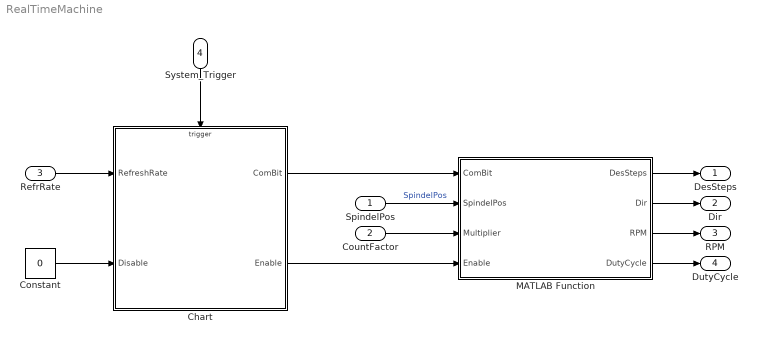
== matlab function RealTimeMachine/MATLAB Function ==
function [DesSteps, Dir, RPM, DutyCycle] = fcn(ComBit, SpindelPos, Multiplier, Enable)

% Initialization of Variables and Outputs
RPM = uint16(0);
DutyCycle = uint16(130);
Dir = uint16(0);
DesSteps = uint16(0);

%% Declaration of constants
TotalStepTime = uint16(80); %Total time a pulse train is allowed to take in us
rpmRefreshRate = uint16(1000); %RPM calculation Frequency
SingleStepDC = uint16(4); %Single Step Dutycycle in 3us clock cycles (x*3us high, x*3us low)
MaxPos = 0x00FFFFFF; %Point on which the encoder register will overflow 


%% Declaration of persistant variables
persistent Carrier
persistent rpmSteps
persistent PrevSpindelpos

if isempty(Carrier)
    Carrier = 0;
end 

if isempty(rpmSteps)
    rpmSteps = uint32(0);
end

if isempty(PrevSpindelpos)
    PrevSpindelpos = uint32(0);
end

if (SpindelPos ~= PrevSpindelpos) && Enable
    % Spindel in motion
    %% Deal with encoder over/underflow and determine direction
    
    if (SpindelPos > PrevSpindelpos) && ((SpindelPos - PrevSpindelpos) > (MaxPos/2))
        SpindelDiv = (MaxPos - SpindelPos) + PrevSpindelpos;
        PrevSpindelpos = SpindelPos;
        Dir = uint16(0);
        
    elseif(SpindelPos < PrevSpindelpos) && ((PrevSpindelpos - SpindelPos) > (MaxPos/2))
        SpindelDiv = (MaxPos - PrevSpindelpos) + SpindelPos;
        PrevSpindelpos = SpindelPos;
        Dir = uint16(1);
        
    elseif(SpindelPos < PrevSpindelpos)
        SpindelDiv = (PrevSpindelpos - SpindelPos);
        PrevSpindelpos = SpindelPos;
        Dir = uint16(0);
        
    elseif(SpindelPos > PrevSpindelpos)
        SpindelDiv = SpindelPos - PrevSpindelpos;
        PrevSpindelpos = SpindelPos;
        Dir = uint16(1);
    else
        SpindelDiv = uint32(0);
    end

    %% Calculate Desired Steps
    rpmSteps = rpmSteps + uint32(SpindelDiv);
    Carrier = Carrier + (Multiplier * double(SpindelDiv));
    DesSteps = uint16(floor(Carrier));
    Carrier = Carrier - floor(Carrier);

    %% Calculate Dutycycle
    if DesSteps <= 1
        DutyCycle = uint16(SingleStepDC);
    elseif (TotalStepTime/DesSteps) < 7
        DutyCycle = uint16(2);
    else
        DutyCycle = uint16(((TotalStepTime/DesSteps)/10));
    end
            


    %% Calculate current RPM
    if ComBit
        RPM = uint16((rpmSteps*60*uint32(rpmRefreshRate))/4096);
        rpmSteps = uint32(0);
    end

else
    %% Spindel not moving
    PrevSpindelpos = SpindelPos;
    DutyCycle = uint16(SingleStepDC);
    RPM = uint16(0);
    Dir = uint16(0);
    DesSteps = uint16(0);
end
end

== stateflow chart RealTimeMachine/Chart ==
  state Reset
    Enable = 0;
    ComBit = 0;
  state Main
    state MachineStatus [parallel]
      state Enabled
        en: Enable = 1;
      state Disabled
        en: Enable = 0;
      (default) -> Enabled
      Enabled -> Disabled : [Disable == 1]
      Disabled -> Enabled : [Disable == 0]
    state Communication [parallel]
      state RX
        en: ComBit = 0;
      state TX
        en: ComBit = 1;
      (default) -> RX
      TX -> RX : [after(2,Takt)]
      RX -> TX : [after(RefreshRate,Takt)]
  (default) -> Reset
  Reset -> Main : POR
  data: ComBit output uint16; Enable output uint16; RefreshRate input uint16; Disable input uint16
  events: Takt input EITHER_EDGE_EVENT; POR input RISING_EDGE_EVENT

/*
 * Academic License - for use in teaching, academic research, and meeting
 * course requirements at degree granting institutions only.  Not for
 * government, commercial, or other organizational use.
 *
 * File: RealTimeMachine.c
 *
 * Code generated for Simulink model 'RealTimeMachine'.
 *
 * Model version                  : 2.232
 * Simulink Coder version         : 9.5 (R2021a) 14-Nov-2020
 * C/C++ source code generated on : Mon Nov  1 21:52:02 2021
 *
 * Target selection: ert.tlc
 * Embedded hardware selection: Texas Instruments->C2000
 * Code generation objective: Execution efficiency
 * Validation result: Not run
 */

#include "RealTimeMachine.h"
#include "RealTimeMachine_private.h"

/* Named constants for Chart: '<Root>/Chart' */
#define RealTimeMachine_event_POR      (1L)
#define RealTimeMachine_event_Takt     (0L)
#define RealTimeMach_IN_NO_ACTIVE_CHILD (0U)
#define RealTimeMachine_IN_Disabled    (1U)
#define RealTimeMachine_IN_Enabled     (2U)
#define RealTimeMachine_IN_Main        (1U)
#define RealTimeMachine_IN_RX          (1U)
#define RealTimeMachine_IN_Reset       (2U)
#define RealTimeMachine_IN_TX          (2U)

/* Block signals (default storage) */
B_RealTimeMachine_T RealTimeMachine_B;

/* Block states (default storage) */
DW_RealTimeMachine_T RealTimeMachine_DW;

/* Previous zero-crossings (trigger) states */
PrevZCX_RealTimeMachine_T RealTimeMachine_PrevZCX;

/* External inputs (root inport signals with default storage) */
ExtU_RealTimeMachine_T RealTimeMachine_U;

/* Forward declaration for local functions */
static void Re_chartstep_c3_RealTimeMachine(const int32_T *sfEvent);

/* Function for Chart: '<Root>/Chart' */
static void Re_chartstep_c3_RealTimeMachine(const int32_T *sfEvent)
{
  /* Chart: '<Root>/Chart' incorporates:
   *  Constant: '<Root>/Constant'
   *  Inport: '<Root>/RefrRate'
   */
  /* During: Chart */
  if (RealTimeMachine_DW.is_active_c3_RealTimeMachine == 0U) {
    /* Entry: Chart */
    RealTimeMachine_DW.is_active_c3_RealTimeMachine = 1U;

    /* Entry Internal: Chart */
    /* Transition: '<S1>:12' */
    RealTimeMachine_DW.is_c3_RealTimeMachine = RealTimeMachine_IN_Reset;

    /* Entry 'Reset': '<S1>:1' */
    RealTimeMachine_B.Enable = 0U;
    RealTimeMachine_B.ComBit = 0U;
  } else if (RealTimeMachine_DW.is_c3_RealTimeMachine == 1U) {
    /* During 'Main': '<S1>:2' */
    /* During 'MachineStatus': '<S1>:101' */
    if (RealTimeMachine_DW.is_MachineStatus == 1U) {
      /* During 'Disabled': '<S1>:100' */
      if (RealTimeMachine_P.Constant_Value == 0U) {
        /* Transition: '<S1>:104' */
        RealTimeMachine_DW.is_MachineStatus = RealTimeMachine_IN_Enabled;

        /* Entry 'Enabled': '<S1>:98' */
        RealTimeMachine_B.Enable = 1U;
      }

      /* During 'Enabled': '<S1>:98' */
    } else if (RealTimeMachine_P.Constant_Value == 1U) {
      /* Transition: '<S1>:103' */
      RealTimeMachine_DW.is_MachineStatus = RealTimeMachine_IN_Disabled;

      /* Entry 'Disabled': '<S1>:100' */
      RealTimeMachine_B.Enable = 0U;
    }

    /* During 'Communication': '<S1>:102' */
    if (RealTimeMachine_DW.is_Communication == 1U) {
      /* During 'RX': '<S1>:99' */
      if (RealTimeMachine_DW.temporalCounter_i1 >= RealTimeMachine_U.RefrRate) {
        /* Transition: '<S1>:107' */
        RealTimeMachine_DW.is_Communication = RealTimeMachine_IN_TX;
        RealTimeMachine_DW.temporalCounter_i1 = 0U;

        /* Entry 'TX': '<S1>:105' */
        RealTimeMachine_B.ComBit = 1U;
      }

      /* During 'TX': '<S1>:105' */
    } else if (RealTimeMachine_DW.temporalCounter_i1 >= 1U) {
      /* Transition: '<S1>:106' */
      RealTimeMachine_DW.is_Communication = RealTimeMachine_IN_RX;
      RealTimeMachine_DW.temporalCounter_i1 = 0U;

      /* Entry 'RX': '<S1>:99' */
      RealTimeMachine_B.ComBit = 0U;
    }

    /* During 'Reset': '<S1>:1' */
  } else if (*sfEvent == RealTimeMachine_event_POR) {
    /* Transition: '<S1>:9' */
    RealTimeMachine_DW.is_c3_RealTimeMachine = RealTimeMachine_IN_Main;

    /* Entry Internal 'Main': '<S1>:2' */
    /* Entry Internal 'MachineStatus': '<S1>:101' */
    /* Transition: '<S1>:108' */
    RealTimeMachine_DW.is_MachineStatus = RealTimeMachine_IN_Enabled;

    /* Entry 'Enabled': '<S1>:98' */
    RealTimeMachine_B.Enable = 1U;

    /* Entry Internal 'Communication': '<S1>:102' */
    /* Transition: '<S1>:109' */
    RealTimeMachine_DW.is_Communication = RealTimeMachine_IN_RX;
    RealTimeMachine_DW.temporalCounter_i1 = 0U;

    /* Entry 'RX': '<S1>:99' */
    RealTimeMachine_B.ComBit = 0U;
  } else {
    RealTimeMachine_B.Enable = 0U;
    RealTimeMachine_B.ComBit = 0U;
  }

  /* End of Chart: '<Root>/Chart' */
}

real_T rt_roundd_snf(real_T u)
{
  real_T y;
  if (fabs(u) < 4.503599627370496E+15) {
    if (u >= 0.5) {
      y = floor(u + 0.5);
    } else if (u > -0.5) {
      y = u * 0.0;
    } else {
      y = ceil(u - 0.5);
    }
  } else {
    y = u;
  }

  return y;
}

/* Model step function */
void RealTimeMachine_step(uint32_T arg_SpindelPos, real_T arg_CountFactor,
  uint16_T arg_RefrRate, uint16_T arg_System_Trigger[2], uint16_T *arg_DesSteps,
  uint16_T *arg_Dir, uint16_T *arg_RPM, uint16_T *arg_DutyCycle)
{
  real_T DesSteps_tmp;
  uint64_T tmp;
  int32_T sfEvent;
  uint32_T SpindelDiv;
  uint32_T qY;
  int16_T tmp_0;
  int16_T tmp_1;
  uint16_T DesSteps;
  uint16_T tmp_2;
  uint16_T x_tmp;
  uint16_T z;
  uint16_T z_tmp;
  boolean_T zcEvent;
  boolean_T zcEvent_idx_0;

  /* Copy value for root inport '<Root>/RefrRate' since it is accessed globally */
  RealTimeMachine_U.RefrRate = arg_RefrRate;

  /* Chart: '<Root>/Chart' incorporates:
   *  TriggerPort: '<S1>/input events'
   */
  /* Inport: '<Root>/System_Trigger' */
  zcEvent_idx_0 = (((arg_System_Trigger[0] > 0U) !=
                    (RealTimeMachine_PrevZCX.Chart_Trig_ZCE[0] == POS_ZCSIG)) &&
                   (RealTimeMachine_PrevZCX.Chart_Trig_ZCE[0] !=
                    UNINITIALIZED_ZCSIG));
  zcEvent = (((arg_System_Trigger[1] > 0U) !=
              (RealTimeMachine_PrevZCX.Chart_Trig_ZCE[1] == POS_ZCSIG)) &&
             (RealTimeMachine_PrevZCX.Chart_Trig_ZCE[1] != UNINITIALIZED_ZCSIG));
  if (zcEvent_idx_0 || zcEvent) {
    /* Inport: '<Root>/System_Trigger' */
    tmp_1 = (int16_T)(zcEvent_idx_0 ? (int16_T)arg_System_Trigger[0] > 0 ?
                      RISING_ZCEVENT : FALLING_ZCEVENT : NO_ZCEVENT);
    tmp_0 = (int16_T)(zcEvent ? (int16_T)arg_System_Trigger[1] > 0 ?
                      RISING_ZCEVENT : FALLING_ZCEVENT : NO_ZCEVENT);

    /* Gateway: Chart */
    if (((tmp_1 & 128U) != 0U ? tmp_1 | -128 : tmp_1 & 127) != 0) {
      if (RealTimeMachine_DW.temporalCounter_i1 < MAX_uint16_T) {
        RealTimeMachine_DW.temporalCounter_i1++;
      }

      /* Event: '<S1>:49' */
      sfEvent = RealTimeMachine_event_Takt;
      Re_chartstep_c3_RealTimeMachine(&sfEvent);
    }

    if (((tmp_0 & 128U) != 0U ? tmp_0 | -128 : tmp_0 & 127) == 1) {
      /* Event: '<S1>:50' */
      sfEvent = RealTimeMachine_event_POR;
      Re_chartstep_c3_RealTimeMachine(&sfEvent);
    }
  }

  /* Inport: '<Root>/System_Trigger' */
  RealTimeMachine_PrevZCX.Chart_Trig_ZCE[0] = (ZCSigState)(arg_System_Trigger[0]
    > 0U);
  RealTimeMachine_PrevZCX.Chart_Trig_ZCE[1] = (ZCSigState)(arg_System_Trigger[1]
    > 0U);

  /* Outport: '<Root>/RPM' incorporates:
   *  MATLAB Function: '<Root>/MATLAB Function'
   */
  /*  Initialization of Variables and Outputs */
  /* MATLAB Function 'MATLAB Function': '<S2>:1' */
  /* '<S2>:1:4' RPM = uint16(0); */
  *arg_RPM = 0U;

  /* Outport: '<Root>/Dir' incorporates:
   *  MATLAB Function: '<Root>/MATLAB Function'
   */
  /* '<S2>:1:5' DutyCycle = uint16(130); */
  /* '<S2>:1:6' Dir = uint16(0); */
  *arg_Dir = 0U;

  /* MATLAB Function: '<Root>/MATLAB Function' incorporates:
   *  Inport: '<Root>/CountFactor'
   *  Inport: '<Root>/SpindelPos'
   */
  /* '<S2>:1:7' DesSteps = uint16(0); */
  /*  Declaration of constants */
  /* '<S2>:1:10' TotalStepTime = uint16(80); */
  /* Total time a pulse train is allowed to take in us */
  /* '<S2>:1:11' rpmRefreshRate = uint16(1000); */
  /* RPM calculation Frequency */
  /* '<S2>:1:12' SingleStepDC = uint16(4); */
  /* Single Step Dutycycle in 3us clock cycles (x*3us high, x*3us low) */
  /* '<S2>:1:13' MaxPos = 0x00FFFFFF; */
  /* Point on which the encoder register will overflow  */
  /*  Declaration of persistant variables */
  /* '<S2>:1:21' if isempty(Carrier) */
  /* '<S2>:1:25' if isempty(rpmSteps) */
  /* '<S2>:1:29' if isempty(PrevSpindelpos) */
  /* '<S2>:1:33' if (SpindelPos ~= PrevSpindelpos) && Enable */
  if ((arg_SpindelPos != RealTimeMachine_DW.PrevSpindelpos) &&
      (RealTimeMachine_B.Enable != 0U)) {
    /*  Spindel in motion */
    /*     %% Deal with encoder over/underflow and determine direction */
    /* '<S2>:1:37' if (SpindelPos > PrevSpindelpos) && ((SpindelPos - PrevSpindelpos) > (MaxPos/2)) */
    SpindelDiv = arg_SpindelPos - /*MW:OvSatOk*/
      RealTimeMachine_DW.PrevSpindelpos;
    qY = SpindelDiv;
    if (SpindelDiv > arg_SpindelPos) {
      qY = 0UL;
    }

    if ((arg_SpindelPos > RealTimeMachine_DW.PrevSpindelpos) && (qY > 8388608UL))
    {
      /* '<S2>:1:38' SpindelDiv = (MaxPos - SpindelPos) + PrevSpindelpos; */
      qY = 16777215UL - /*MW:OvSatOk*/ arg_SpindelPos;
      if (16777215UL - arg_SpindelPos > 16777215UL) {
        qY = 0UL;
      }

      SpindelDiv = qY + /*MW:OvSatOk*/ RealTimeMachine_DW.PrevSpindelpos;
      if (SpindelDiv < qY) {
        SpindelDiv = MAX_uint32_T;
      }

      /* '<S2>:1:39' PrevSpindelpos = SpindelPos; */
      RealTimeMachine_DW.PrevSpindelpos = arg_SpindelPos;

      /* Outport: '<Root>/Dir' */
      /* '<S2>:1:40' Dir = uint16(0); */
      *arg_Dir = 0U;
    } else {
      qY = RealTimeMachine_DW.PrevSpindelpos - /*MW:OvSatOk*/ arg_SpindelPos;
      if (qY > RealTimeMachine_DW.PrevSpindelpos) {
        qY = 0UL;
      }

      if ((arg_SpindelPos < RealTimeMachine_DW.PrevSpindelpos) && (qY >
           8388608UL)) {
        /* '<S2>:1:42' elseif(SpindelPos < PrevSpindelpos) && ((PrevSpindelpos - SpindelPos) > (MaxPos/2)) */
        /* '<S2>:1:43' SpindelDiv = (MaxPos - PrevSpindelpos) + SpindelPos; */
        qY = 16777215UL - /*MW:OvSatOk*/ RealTimeMachine_DW.PrevSpindelpos;
        if (16777215UL - RealTimeMachine_DW.PrevSpindelpos > 16777215UL) {
          qY = 0UL;
        }

        SpindelDiv = qY + /*MW:OvSatOk*/ arg_SpindelPos;
        if (SpindelDiv < qY) {
          SpindelDiv = MAX_uint32_T;
        }

        /* '<S2>:1:44' PrevSpindelpos = SpindelPos; */
        RealTimeMachine_DW.PrevSpindelpos = arg_SpindelPos;

        /* Outport: '<Root>/Dir' */
        /* '<S2>:1:45' Dir = uint16(1); */
        *arg_Dir = 1U;
      } else if (arg_SpindelPos < RealTimeMachine_DW.PrevSpindelpos) {
        /* '<S2>:1:47' elseif(SpindelPos < PrevSpindelpos) */
        /* '<S2>:1:48' SpindelDiv = (PrevSpindelpos - SpindelPos); */
        SpindelDiv = RealTimeMachine_DW.PrevSpindelpos - /*MW:OvSatOk*/
          arg_SpindelPos;
        if (SpindelDiv > RealTimeMachine_DW.PrevSpindelpos) {
          SpindelDiv = 0UL;
        }

        /* '<S2>:1:49' PrevSpindelpos = SpindelPos; */
        RealTimeMachine_DW.PrevSpindelpos = arg_SpindelPos;

        /* Outport: '<Root>/Dir' */
        /* '<S2>:1:50' Dir = uint16(0); */
        *arg_Dir = 0U;
      } else if (arg_SpindelPos > RealTimeMachine_DW.PrevSpindelpos) {
        /* '<S2>:1:52' elseif(SpindelPos > PrevSpindelpos) */
        /* '<S2>:1:53' SpindelDiv = SpindelPos - PrevSpindelpos; */
        if (SpindelDiv > arg_SpindelPos) {
          SpindelDiv = 0UL;
        }

        /* '<S2>:1:54' PrevSpindelpos = SpindelPos; */
        RealTimeMachine_DW.PrevSpindelpos = arg_SpindelPos;

        /* Outport: '<Root>/Dir' */
        /* '<S2>:1:55' Dir = uint16(1); */
        *arg_Dir = 1U;
      } else {
        /* '<S2>:1:56' else */
        /* '<S2>:1:57' SpindelDiv = uint32(0); */
        SpindelDiv = 0UL;
      }
    }

    /*     %% Calculate Desired Steps */
    /* '<S2>:1:61' rpmSteps = rpmSteps + uint32(SpindelDiv); */
    qY = RealTimeMachine_DW.rpmSteps + /*MW:OvSatOk*/ SpindelDiv;
    if (qY < RealTimeMachine_DW.rpmSteps) {
      qY = MAX_uint32_T;
    }

    RealTimeMachine_DW.rpmSteps = qY;

    /* '<S2>:1:62' Carrier = Carrier + (Multiplier * double(SpindelDiv)); */
    RealTimeMachine_DW.Carrier += arg_CountFactor * (real_T)SpindelDiv;

    /* '<S2>:1:63' DesSteps = uint16(floor(Carrier)); */
    DesSteps_tmp = floor(RealTimeMachine_DW.Carrier);
    if (DesSteps_tmp < 65536.0) {
      if (DesSteps_tmp >= 0.0) {
        DesSteps = (uint16_T)DesSteps_tmp;
      } else {
        DesSteps = 0U;
      }
    } else {
      DesSteps = MAX_uint16_T;
    }

    /* Outport: '<Root>/DesSteps' incorporates:
     *  Inport: '<Root>/CountFactor'
     */
    *arg_DesSteps = DesSteps;

    /* '<S2>:1:64' Carrier = Carrier - floor(Carrier); */
    RealTimeMachine_DW.Carrier -= DesSteps_tmp;

    /*     %% Calculate Dutycycle */
    /* '<S2>:1:67' if DesSteps <= 1 */
    if (DesSteps <= 1U) {
      /* Outport: '<Root>/DutyCycle' */
      /* '<S2>:1:68' DutyCycle = uint16(SingleStepDC); */
      *arg_DutyCycle = 4U;
    } else {
      z_tmp = 80U / DesSteps;
      z = z_tmp;
      x_tmp = 80U - z_tmp * DesSteps;
      tmp_2 = DesSteps & 1U;
      if ((x_tmp > 0U) && (x_tmp >= (DesSteps >> 1U) + tmp_2)) {
        z = z_tmp + 1U;
      }

      if ((int16_T)z < 7) {
        /* Outport: '<Root>/DutyCycle' */
        /* '<S2>:1:69' elseif (TotalStepTime/DesSteps) < 7 */
        /* '<S2>:1:70' DutyCycle = uint16(2); */
        *arg_DutyCycle = 2U;
      } else {
        /* '<S2>:1:71' else */
        /* '<S2>:1:72' DutyCycle = uint16(((TotalStepTime/DesSteps)/10)); */
        z = z_tmp;
        if ((x_tmp > 0U) && (x_tmp >= (DesSteps >> 1U) + tmp_2)) {
          z = z_tmp + 1U;
        }

        /* Outport: '<Root>/DutyCycle' */
        *arg_DutyCycle = (uint16_T)rt_roundd_snf((real_T)z / 10.0);
      }
    }

    /*     %% Calculate current RPM */
    /* '<S2>:1:78' if ComBit */
    if (RealTimeMachine_B.ComBit != 0U) {
      /* '<S2>:1:79' RPM = uint16((rpmSteps*60*uint32(rpmRefreshRate))/4096); */
      tmp = RealTimeMachine_DW.rpmSteps * 60ULL;
      if (tmp > 4294967295ULL) {
        tmp = 4294967295ULL;
      }

      tmp = (uint32_T)tmp * 1000ULL;
      if (tmp > 4294967295ULL) {
        tmp = 4294967295ULL;
      }

      qY = (uint32_T)rt_roundd_snf((real_T)(uint32_T)tmp / 4096.0);
      if ((int32_T)qY > 65535L) {
        qY = 65535UL;
      }

      /* Outport: '<Root>/RPM' */
      *arg_RPM = (uint16_T)qY;

      /* '<S2>:1:80' rpmSteps = uint32(0); */
      RealTimeMachine_DW.rpmSteps = 0UL;
    }
  } else {
    /* '<S2>:1:83' else */
    /*     %% Spindel not moving */
    /* '<S2>:1:85' PrevSpindelpos = SpindelPos; */
    RealTimeMachine_DW.PrevSpindelpos = arg_SpindelPos;

    /* Outport: '<Root>/DutyCycle' */
    /* '<S2>:1:86' DutyCycle = uint16(SingleStepDC); */
    *arg_DutyCycle = 4U;

    /* Outport: '<Root>/RPM' */
    /* '<S2>:1:87' RPM = uint16(0); */
    *arg_RPM = 0U;

    /* Outport: '<Root>/Dir' */
    /* '<S2>:1:88' Dir = uint16(0); */
    *arg_Dir = 0U;

    /* Outport: '<Root>/DesSteps' */
    /* '<S2>:1:89' DesSteps = uint16(0); */
    *arg_DesSteps = 0U;
  }
}
